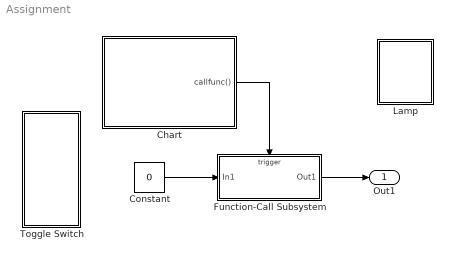
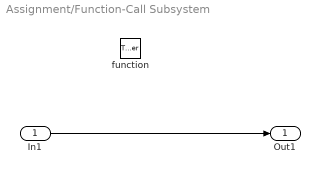
== system Assignment/Lamp ==

== system Assignment/Toggle Switch ==

== stateflow chart Assignment/Chart ==
  state callFunction
    en:
    du:
    ex:
  (default) -> callFunction
  callFunction -> callFunction : [after(5,msec)]{callfunc;}
  events: callfunc output FUNCTION_CALL_EVENT

/*
 * File: Assignment.c
 *
 * Code generated for Simulink model 'Assignment'.
 *
 * Model version                  : 1.6
 * Simulink Coder version         : 8.10 (R2016a) 10-Feb-2016
 * C/C++ source code generated on : Tue Apr 05 22:39:11 2022
 *
 * Target selection: ert.tlc
 * Embedded hardware selection: Intel->x86-64 (Windows64)
 * Code generation objectives: Unspecified
 * Validation result: Not run
 */

#include "Assignment.h"
#include "Assignment_private.h"

/* Block signals (auto storage) */
B_Assignment_T Assignment_B;

/* Block states (auto storage) */
DW_Assignment_T Assignment_DW;

/* External outputs (root outports fed by signals with auto storage) */
ExtY_Assignment_T Assignment_Y;

/* Real-time model */
RT_MODEL_Assignment_T Assignment_M_;
RT_MODEL_Assignment_T *const Assignment_M = &Assignment_M_;

/* Model step function */
void Assignment_step(void)
{
  /* Chart: '<Root>/Chart' incorporates:
   *  Constant: '<Root>/Constant'
   *  Inport: '<S2>/In1'
   */
  if (Assignment_DW.temporalCounter_i1 < 3U) {
    Assignment_DW.temporalCounter_i1++;
  }

  /* Gateway: Chart */
  /* During: Chart */
  if (Assignment_DW.is_active_c3_Assignment == 0U) {
    /* Entry: Chart */
    Assignment_DW.is_active_c3_Assignment = 1U;

    /* Entry Internal: Chart */
    /* Transition: '<S1>:2' */
    Assignment_DW.temporalCounter_i1 = 0U;

    /* Entry 'callFunction': '<S1>:1' */
  } else {
    /* During 'callFunction': '<S1>:1' */
    /* '<S1>:3:1' sf_internal_predicateOutput = ... */
    /* '<S1>:3:1' after(5,msec); */
    if (Assignment_DW.temporalCounter_i1 >= 1U) {
      /* Outputs for Function Call SubSystem: '<Root>/Function-Call Subsystem' */
      /* Transition: '<S1>:3' */
      /* '<S1>:3:1' callfunc; */
      /* Event: '<S1>:4' */
      Assignment_B.In1 = 0.0;

      /* End of Outputs for SubSystem: '<Root>/Function-Call Subsystem' */
      /* Exit 'callFunction': '<S1>:1' */
      Assignment_DW.temporalCounter_i1 = 0U;

      /* Entry 'callFunction': '<S1>:1' */
    }
  }

  /* End of Chart: '<Root>/Chart' */

  /* Outport: '<Root>/Out1' */
  Assignment_Y.Out1 = Assignment_B.In1;
}
